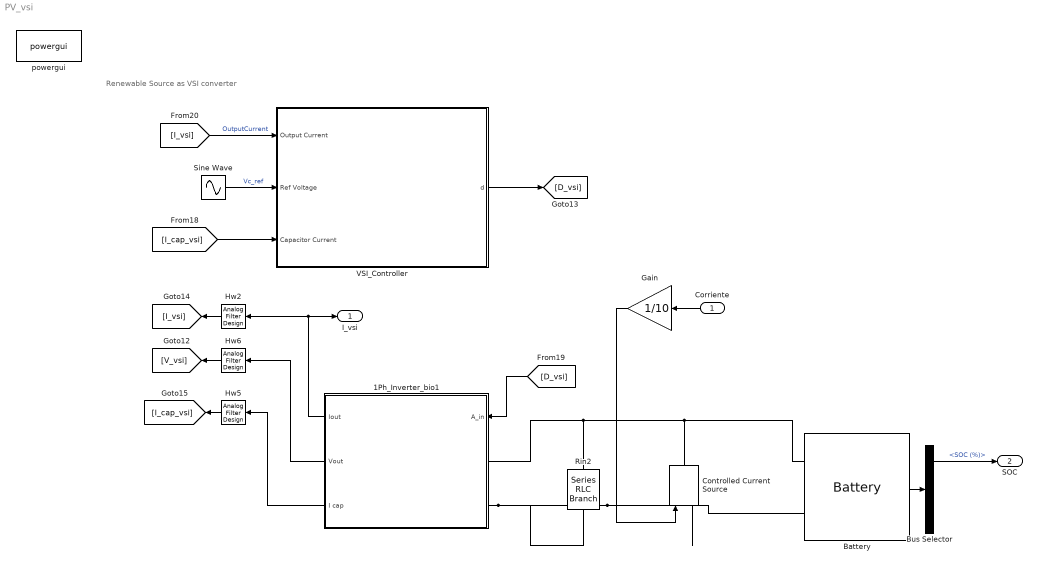
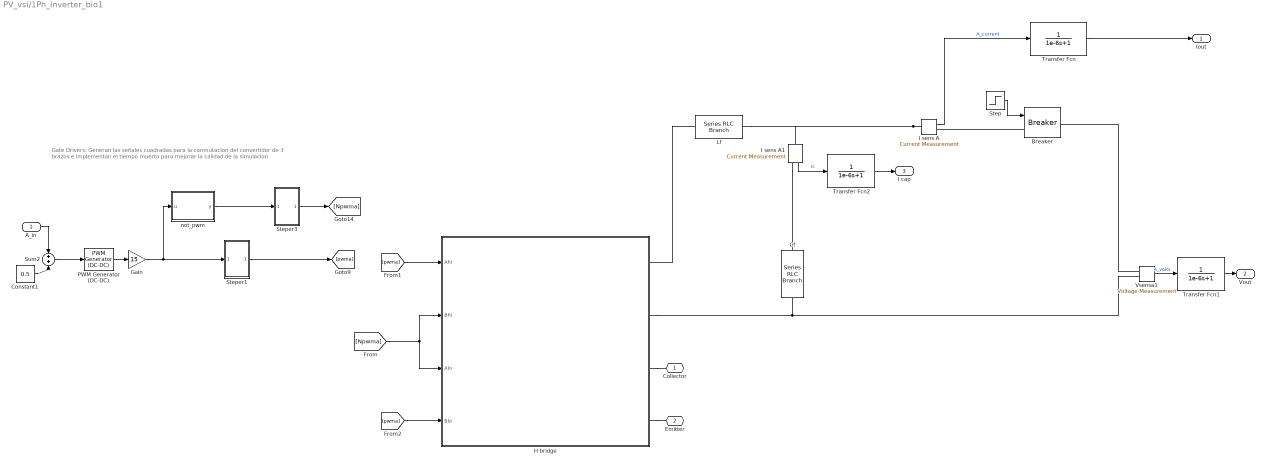
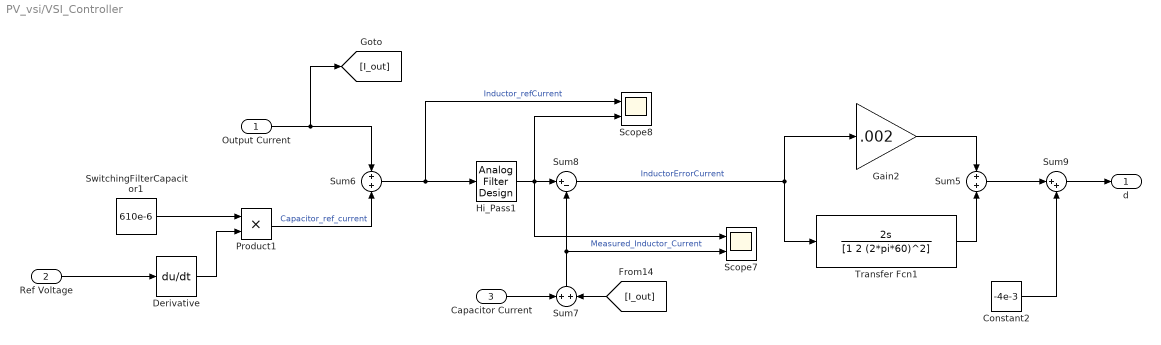
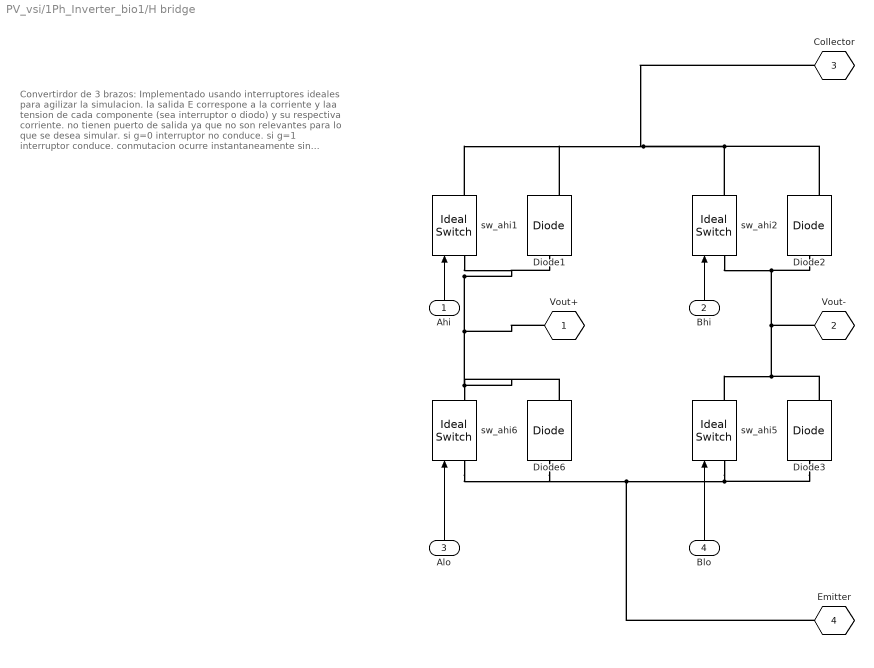
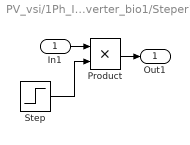
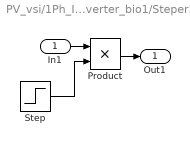
== matlab function PV_vsi/1Ph_Inverter_bio1/not_pwm ==
function y = fcn(u)
%#codegen

if(u==0 || u<0)
    a=15;
else
    a=0;
end;

y = a;

/*
 * File: PV_vsi.c
 *
 * Code generated for Simulink model 'PV_vsi'.
 *
 * Model version                  : 1.17
 * Simulink Coder version         : 8.12 (R2017a) 16-Feb-2017
 * C/C++ source code generated on : Tue Jul 31 14:14:34 2018
 *
 * Target selection: ert.tlc
 * Embedded hardware selection: Intel->x86-64 (Windows64)
 * Code generation objectives: Unspecified
 * Validation result: Not run
 */

#include "PV_vsi.h"
#include "PV_vsi_private.h"

/* Block signals (auto storage) */
B_PV_vsi_T PV_vsi_B;

/* Continuous states */
X_PV_vsi_T PV_vsi_X;

/* Block states (auto storage) */
DW_PV_vsi_T PV_vsi_DW;

/* External inputs (root inport signals with auto storage) */
ExtU_PV_vsi_T PV_vsi_U;

/* External outputs (root outports fed by signals with auto storage) */
ExtY_PV_vsi_T PV_vsi_Y;

/* Real-time model */
RT_MODEL_PV_vsi_T PV_vsi_M_;
RT_MODEL_PV_vsi_T *const PV_vsi_M = &PV_vsi_M_;

/*
 * This function updates continuous states using the ODE4 fixed-step
 * solver algorithm
 */
static void rt_ertODEUpdateContinuousStates(RTWSolverInfo *si )
{
  time_T t = rtsiGetT(si);
  time_T tnew = rtsiGetSolverStopTime(si);
  time_T h = rtsiGetStepSize(si);
  real_T *x = rtsiGetContStates(si);
  ODE4_IntgData *id = (ODE4_IntgData *)rtsiGetSolverData(si);
  real_T *y = id->y;
  real_T *f0 = id->f[0];
  real_T *f1 = id->f[1];
  real_T *f2 = id->f[2];
  real_T *f3 = id->f[3];
  real_T temp;
  int_T i;
  int_T nXc = 12;
  rtsiSetSimTimeStep(si,MINOR_TIME_STEP);

  /* Save the state values at time t in y, we'll use x as ynew. */
  (void) memcpy(y, x,
                (uint_T)nXc*sizeof(real_T));

  /* Assumes that rtsiSetT and ModelOutputs are up-to-date */
  /* f0 = f(t,y) */
  rtsiSetdX(si, f0);
  PV_vsi_derivatives();

  /* f1 = f(t + (h/2), y + (h/2)*f0) */
  temp = 0.5 * h;
  for (i = 0; i < nXc; i++) {
    x[i] = y[i] + (temp*f0[i]);
  }

  rtsiSetT(si, t + temp);
  rtsiSetdX(si, f1);
  PV_vsi_step();
  PV_vsi_derivatives();

  /* f2 = f(t + (h/2), y + (h/2)*f1) */
  for (i = 0; i < nXc; i++) {
    x[i] = y[i] + (temp*f1[i]);
  }

  rtsiSetdX(si, f2);
  PV_vsi_step();
  PV_vsi_derivatives();

  /* f3 = f(t + h, y + h*f2) */
  for (i = 0; i < nXc; i++) {
    x[i] = y[i] + (h*f2[i]);
  }

  rtsiSetT(si, tnew);
  rtsiSetdX(si, f3);
  PV_vsi_step();
  PV_vsi_derivatives();

  /* tnew = t + h
     ynew = y + (h/6)*(f0 + 2*f1 + 2*f2 + 2*f3) */
  temp = h / 6.0;
  for (i = 0; i < nXc; i++) {
    x[i] = y[i] + temp*(f0[i] + 2.0*f1[i] + 2.0*f2[i] + f3[i]);
  }

  rtsiSetSimTimeStep(si,MAJOR_TIME_STEP);
}

real_T rt_remd_snf(real_T u0, real_T u1)
{
  real_T y;
  real_T q;
  if (!((!rtIsNaN(u0)) && (!rtIsInf(u0)) && ((!rtIsNaN(u1)) && (!rtIsInf(u1)))))
  {
    y = (rtNaN);
  } else if ((u1 != 0.0) && (u1 != trunc(u1))) {
    q = fabs(u0 / u1);
    if (fabs(q - floor(q + 0.5)) <= DBL_EPSILON * q) {
      y = 0.0 * u0;
    } else {
      y = fmod(u0, u1);
    }
  } else {
    y = fmod(u0, u1);
  }

  return y;
}

/* Model step function */
void PV_vsi_step(void)
{
  /* local block i/o variables */
  real_T rtb_DataTypeConversion2;
  real_T rtb_Gain2_p;
  if (rtmIsMajorTimeStep(PV_vsi_M)) {
    /* set solver stop time */
    if (!(PV_vsi_M->Timing.clockTick0+1)) {
      rtsiSetSolverStopTime(&PV_vsi_M->solverInfo,
                            ((PV_vsi_M->Timing.clockTickH0 + 1) *
        PV_vsi_M->Timing.stepSize0 * 4294967296.0));
    } else {
      rtsiSetSolverStopTime(&PV_vsi_M->solverInfo, ((PV_vsi_M->Timing.clockTick0
        + 1) * PV_vsi_M->Timing.stepSize0 + PV_vsi_M->Timing.clockTickH0 *
        PV_vsi_M->Timing.stepSize0 * 4294967296.0));
    }
  }                                    /* end MajorTimeStep */

  /* Update absolute time of base rate at minor time step */
  if (rtmIsMinorTimeStep(PV_vsi_M)) {
    PV_vsi_M->Timing.t[0] = rtsiGetT(&PV_vsi_M->solverInfo);
  }

  {
    real_T *lastU;
    int32_T a;
    real_T rtb_R4;
    real_T rtb_Switch2;
    real_T rtb_Currentfilter5;
    real_T rtb_Gain;
    real_T rtb_R3;
    if (rtmIsMajorTimeStep(PV_vsi_M)) {
      /* Memory: '<S49>/it init1' */
      rtb_R4 = PV_vsi_DW.itinit1_PreviousInput;

      /* Gain: '<S49>/R2' incorporates:
       *  Memory: '<S49>/it init1'
       */
      rtb_Switch2 = 0.9999 * PV_vsi_DW.itinit1_PreviousInput;

      /* DiscreteTransferFcn: '<S49>/Current filter5' */
      rtb_Currentfilter5 = 0.0002999550044996413 *
        PV_vsi_DW.Currentfilter5_states;

      /* DataTypeConversion: '<S49>/Data Type Conversion2' incorporates:
       *  Constant: '<S52>/Constant'
       *  RelationalOperator: '<S52>/Compare'
       */
      rtb_DataTypeConversion2 = (rtb_Currentfilter5 > 0.0);

      /* DiscreteIntegrator: '<S49>/int(i)' incorporates:
       *  Memory: '<S49>/it init'
       */
      if (PV_vsi_DW.inti_IC_LOADING != 0) {
        PV_vsi_DW.inti_DSTATE = PV_vsi_DW.itinit_PreviousInput;
        if (PV_vsi_DW.inti_DSTATE >= 3722.3999999999905) {
          PV_vsi_DW.inti_DSTATE = 3722.3999999999905;
        } else {
          if (PV_vsi_DW.inti_DSTATE <= (rtMinusInf)) {
            PV_vsi_DW.inti_DSTATE = (rtMinusInf);
          }
        }
      }

      if ((rtb_DataTypeConversion2 > 0.0) && (PV_vsi_DW.inti_PrevResetState <= 0))
      {
        PV_vsi_DW.inti_DSTATE = PV_vsi_DW.itinit_PreviousInput;
        if (PV_vsi_DW.inti_DSTATE >= 3722.3999999999905) {
          PV_vsi_DW.inti_DSTATE = 3722.3999999999905;
        } else {
          if (PV_vsi_DW.inti_DSTATE <= (rtMinusInf)) {
            PV_vsi_DW.inti_DSTATE = (rtMinusInf);
          }
        }
      }

      if (PV_vsi_DW.inti_DSTATE >= 3722.3999999999905) {
        PV_vsi_DW.inti_DSTATE = 3722.3999999999905;
      } else {
        if (PV_vsi_DW.inti_DSTATE <= (rtMinusInf)) {
          PV_vsi_DW.inti_DSTATE = (rtMinusInf);
        }
      }

      /* Gain: '<S49>/Gain' incorporates:
       *  DiscreteIntegrator: '<S49>/int(i)'
       */
      rtb_Gain = 0.00027777777777777778 * PV_vsi_DW.inti_DSTATE;

      /* Switch: '<S59>/Switch2' incorporates:
       *  RelationalOperator: '<S59>/LowerRelop1'
       */
      if (!(rtb_Gain > rtb_Switch2)) {
        /* Switch: '<S59>/Switch' incorporates:
         *  Constant: '<S49>/Constant9'
         *  RelationalOperator: '<S59>/UpperRelop'
         */
        if (rtb_Gain < 0.0) {
          rtb_Switch2 = 0.0;
        } else {
          rtb_Switch2 = rtb_Gain;
        }

        /* End of Switch: '<S59>/Switch' */
      }

      /* End of Switch: '<S59>/Switch2' */

      /* Gain: '<S49>/R3' incorporates:
       *  Memory: '<S49>/it init1'
       */
      rtb_R3 = 0.9999 * PV_vsi_DW.itinit1_PreviousInput;

      /* Switch: '<S60>/Switch2' incorporates:
       *  RelationalOperator: '<S60>/LowerRelop1'
       */
      if (!(rtb_Gain > rtb_R3)) {
        /* Fcn: '<S49>/Fcn6' */
        rtb_R3 = -rtb_R3 * 0.999 * 0.1 * 0.9999;

        /* Switch: '<S60>/Switch' incorporates:
         *  RelationalOperator: '<S60>/UpperRelop'
         */
        if (!(rtb_Gain < rtb_R3)) {
          rtb_R3 = rtb_Gain;
        }

        /* End of Switch: '<S60>/Switch' */
      }

      /* End of Switch: '<S60>/Switch2' */

      /* Sum: '<S49>/Add3' incorporates:
       *  Constant: '<S49>/Constant'
       *  Constant: '<S53>/Constant'
       *  Fcn: '<S49>/E_NL'
       *  Fcn: '<S49>/E_dyn Discharge'
       *  Fcn: '<S49>/Fcn5'
       *  Fcn: '<S54>/Charge Li-Ion'
       *  Fcn: '<S55>/Li-Ion'
       *  Memory: '<S49>/it init1'
       *  Product: '<S54>/Product'
       *  RelationalOperator: '<S53>/Compare'
       *  Sum: '<S49>/Add2'
       */
      rtb_Gain = ((((-rtb_DataTypeConversion2 * 0.0605295518538322 *
                     rtb_Currentfilter5 * PV_vsi_DW.itinit1_PreviousInput /
                     (PV_vsi_DW.itinit1_PreviousInput - rtb_Switch2) +
                     -0.0605295518538322 * PV_vsi_DW.itinit1_PreviousInput /
                     (PV_vsi_DW.itinit1_PreviousInput - rtb_Switch2) *
                     rtb_Switch2) + -(real_T)(rtb_Currentfilter5 < 0.0) *
                    0.0605295518538322 * rtb_Currentfilter5 *
                    PV_vsi_DW.itinit1_PreviousInput /
                    (PV_vsi_DW.itinit1_PreviousInput * 0.1 + rtb_R3)) + exp
                   (-61.061946632469265 * rtb_Switch2) * 83.400845004248509) +
                  -0.0 * rtb_Switch2) + 1206.9850549957514;

      /* Switch: '<S58>/Switch2' incorporates:
       *  Constant: '<S49>/Constant1'
       *  RelationalOperator: '<S58>/LowerRelop1'
       */
      if (rtb_Gain > 2413.9701099915028) {
        PV_vsi_B.Switch2 = 2413.9701099915028;
      } else {
        /* Gain: '<S49>/R1' */
        rtb_Currentfilter5 *= 0.05;

        /* Switch: '<S58>/Switch' incorporates:
         *  RelationalOperator: '<S58>/UpperRelop'
         */
        if (rtb_Gain < rtb_Currentfilter5) {
          PV_vsi_B.Switch2 = rtb_Currentfilter5;
        } else {
          PV_vsi_B.Switch2 = rtb_Gain;
        }

        /* End of Switch: '<S58>/Switch' */
      }

      /* End of Switch: '<S58>/Switch2' */

      /* Gain: '<Root>/Gain' incorporates:
       *  Inport: '<Root>/Corriente'
       */
      PV_vsi_B.Gain = 0.1 * PV_vsi_U.Corriente;

      /* S-Function (sfun_spssw_discc): '<S70>/State-Space' incorporates:
       *  Constant: '<S33>/eee'
       *  Constant: '<S35>/eee'
       *  Constant: '<S37>/eee'
       *  Constant: '<S39>/eee'
       *  Constant: '<S72>/SwitchCurrents'
       */

      /* S-Function block: <S70>/State-Space */
      {
        real_T accum;

        /* Circuit has switches */
        int_T *switch_status = (int_T*) PV_vsi_DW.StateSpace_PWORK.SWITCH_STATUS;
        int_T *switch_status_init = (int_T*)
          PV_vsi_DW.StateSpace_PWORK.SWITCH_STATUS_INIT;
        int_T *SwitchChange = (int_T*) PV_vsi_DW.StateSpace_PWORK.SW_CHG;
        int_T *gState = (int_T*) PV_vsi_DW.StateSpace_PWORK.G_STATE;
        real_T *yswitch = (real_T*)PV_vsi_DW.StateSpace_PWORK.Y_SWITCH;
        int_T *switchTypes = (int_T*) PV_vsi_DW.StateSpace_PWORK.SWITCH_TYPES;
        int_T *idxOutSw = (int_T*) PV_vsi_DW.StateSpace_PWORK.IDX_OUT_SW;
        real_T *DxCol = (real_T*)PV_vsi_DW.StateSpace_PWORK.DX_COL;
        real_T *tmp2 = (real_T*)PV_vsi_DW.StateSpace_PWORK.TMP2;
        real_T *BDcol = (real_T*)PV_vsi_DW.StateSpace_PWORK.BD_COL;
        real_T *tmp1 = (real_T*)PV_vsi_DW.StateSpace_PWORK.TMP1;
        real_T *uswlast = (real_T*)PV_vsi_DW.StateSpace_PWORK.USWLAST;
        int_T newState;
        int_T swChanged = 0;
        int loopsToDo = 20;
        real_T temp;

        /* keep an initial copy of switch_status*/
        memcpy(switch_status_init, switch_status, 9 * sizeof(int_T));
        memcpy(uswlast, &PV_vsi_B.StateSpace_o1[0], 9*sizeof(real_T));
        do {
          if (loopsToDo == 1) {        /* Need to reset some variables: */
            swChanged = 0;

            /* return to the original switch status*/
            {
              int_T i1;
              for (i1=0; i1 < 9; i1++) {
                swChanged = ((SwitchChange[i1] = switch_status_init[i1] -
                              switch_status[i1]) != 0) ? 1 : swChanged;
                switch_status[i1] = switch_status_init[i1];
              }
            }
          } else {
            /*
             * Compute outputs:
             * ---------------
             */
            real_T *Cs = (real_T*)PV_vsi_DW.StateSpace_PWORK.CS;
            real_T *Ds = (real_T*)PV_vsi_DW.StateSpace_PWORK.DS;

            {
              int_T i1;
              real_T *y0 = &PV_vsi_B.StateSpace_o1[0];
              for (i1=0; i1 < 13; i1++) {
                accum = 0.0;

                {
                  int_T i2;
                  real_T *xd = &PV_vsi_DW.StateSpace_DSTATE[0];
                  for (i2=0; i2 < 7; i2++) {
                    accum += *(Cs++) * xd[i2];
                  }
                }

                {
                  int_T i2;
                  const real_T *u0 = PV_vsi_ConstP.SwitchCurrents_Value;
                  for (i2=0; i2 < 9; i2++) {
                    accum += *(Ds++) * u0[i2];
                  }

                  accum += *(Ds++) * PV_vsi_B.Switch2;
                  accum += *(Ds++) * PV_vsi_B.Gain;
                  accum += *(Ds++) * 0.8;
                  accum += *(Ds++) * 0.8;
                  accum += *(Ds++) * 0.8;
                  accum += *(Ds++) * 0.8;
                }

                y0[i1] = accum;
              }
            }

            swChanged = 0;

            {
              int_T i1;
              real_T *y0 = &PV_vsi_B.StateSpace_o1[0];
              for (i1=0; i1 < 9; i1++) {
                switch (switchTypes[i1]) {
                 case 1 :              /* Ideal switch */
                  newState = gState[i1] > 0 ? 1 : 0;
                  break;

                 case 2 :              /* Breaker */
                  newState = (gState[i1] > 0) ? 1 : ((y0[i1]*uswlast[i1] < 0.0) ?
                    0 : switch_status[i1]);
                  break;

                 case 3 :              /* Diodes */
                  newState = y0[i1] > 0.0 ? 1 : ((y0[i1] < 0.0) ? 0 :
                    switch_status[i1]);
                  break;
                }

                swChanged = ((SwitchChange[i1] = newState - switch_status[i1])
                             != 0) ? 1 : swChanged;
                switch_status[i1] = newState;/* Keep new state */
              }
            }
          }

          /*
           * Compute new As, Bs, Cs and Ds matrixes:
           * --------------------------------------
           */
          if (swChanged) {
            real_T *As = (real_T*)PV_vsi_DW.StateSpace_PWORK.AS;
            real_T *Cs = (real_T*)PV_vsi_DW.StateSpace_PWORK.CS;
            real_T *Bs = (real_T*)PV_vsi_DW.StateSpace_PWORK.BS;
            real_T *Ds = (real_T*)PV_vsi_DW.StateSpace_PWORK.DS;
            real_T a1;

            {
              int_T i1;
              for (i1=0; i1 < 9; i1++) {
                if (SwitchChange[i1] != 0) {
                  a1 = yswitch[i1]*SwitchChange[i1];
                  temp = 1/(1-Ds[i1*16]*a1);

                  {
                    int_T i2;
                    for (i2=0; i2 < 13; i2++) {
                      DxCol[i2]= Ds[i2 * 15 + i1]*temp*a1;
                    }
                  }

                  DxCol[i1] = temp;

                  {
                    int_T i2;
                    for (i2=0; i2 < 7; i2++) {
                      BDcol[i2]= Bs[i2 * 15 + i1]*a1;
                    }
                  }

                  /* Copy row nSw of Cs into tmp1 and zero it out in Cs */
                  memcpy(tmp1, &Cs[i1 * 7], 7 * sizeof(real_T));
                  memset(&Cs[i1 * 7], '\0', 7 * sizeof(real_T));

                  /* Copy row nSw of Ds into tmp2 and zero it out in Ds */
                  memcpy(tmp2, &Ds[i1 * 15], 15 * sizeof(real_T));
                  memset(&Ds[i1 * 15], '\0', 15 * sizeof(real_T));

                  /* Cs = Cs + DxCol * tmp1, Ds = Ds + DxCol * tmp2 *******************/
                  {
                    int_T i2;
                    for (i2=0; i2 < 13; i2++) {
                      a1 = DxCol[i2];

                      {
                        int_T i3;
                        for (i3=0; i3 < 7; i3++) {
                          Cs[i2 * 7 + i3] += a1 * tmp1[i3];
                        }
                      }

                      {
                        int_T i3;
                        for (i3=0; i3 < 15; i3++) {
                          Ds[i2 * 15 + i3] += a1 * tmp2[i3];
                        }
                      }
                    }
                  }

                  /* As = As + BdCol*Cs(nSw,:), Bs = Bs + BdCol*Ds(nSw,:) *************/
                  {
                    int_T i2;
                    for (i2=0; i2 < 7; i2++) {
                      a1 = BDcol[i2];

                      {
                        int_T i3;
                        for (i3=0; i3 < 7; i3++) {
                          As[i2 * 7 + i3] += a1 * Cs[i1 * 7 + i3];
                        }
                      }

                      {
                        int_T i3;
                        for (i3=0; i3 < 15; i3++) {
                          Bs[i2 * 15 + i3] += a1 * Ds[i1 * 15 + i3];
                        }
                      }
                    }
                  }
                }
              }
            }
          }                            /* if (swChanged) */
        } while (swChanged > 0 && --loopsToDo > 0);

        if (loopsToDo == 0) {
          real_T *Cs = (real_T*)PV_vsi_DW.StateSpace_PWORK.CS;
          real_T *Ds = (real_T*)PV_vsi_DW.StateSpace_PWORK.DS;

          {
            int_T i1;
            real_T *y0 = &PV_vsi_B.StateSpace_o1[0];
            for (i1=0; i1 < 13; i1++) {
              accum = 0.0;

              {
                int_T i2;
                real_T *xd = &PV_vsi_DW.StateSpace_DSTATE[0];
                for (i2=0; i2 < 7; i2++) {
                  accum += *(Cs++) * xd[i2];
                }
              }

              {
                int_T i2;
                const real_T *u0 = PV_vsi_ConstP.SwitchCurrents_Value;
                for (i2=0; i2 < 9; i2++) {
                  accum += *(Ds++) * u0[i2];
                }

                accum += *(Ds++) * PV_vsi_B.Switch2;
                accum += *(Ds++) * PV_vsi_B.Gain;
                accum += *(Ds++) * 0.8;
                accum += *(Ds++) * 0.8;
                accum += *(Ds++) * 0.8;
                accum += *(Ds++) * 0.8;
              }

              y0[i1] = accum;
            }
          }
        }

        /* Output new switches states */
        {
          int_T i1;
          real_T *y1 = &PV_vsi_B.StateSpace_o2[0];
          for (i1=0; i1 < 9; i1++) {
            y1[i1] = (real_T)switch_status[i1];
          }
        }
      }
    }

    /* TransferFcn: '<S1>/Transfer Fcn' */
    PV_vsi_B.TransferFcn = 0.0;
    PV_vsi_B.TransferFcn += 1.0E+6 * PV_vsi_X.TransferFcn_CSTATE;

    /* Outport: '<Root>/I_vsi' */
    PV_vsi_Y.I_vsi = PV_vsi_B.TransferFcn;

    /* TransferFcn: '<S1>/Transfer Fcn1' */
    PV_vsi_B.TransferFcn1 = 0.0;
    PV_vsi_B.TransferFcn1 += 1.0E+6 * PV_vsi_X.TransferFcn1_CSTATE;

    /* TransferFcn: '<S1>/Transfer Fcn2' */
    PV_vsi_B.TransferFcn2 = 0.0;
    PV_vsi_B.TransferFcn2 += 1.0E+6 * PV_vsi_X.TransferFcn2_CSTATE;

    /* StateSpace: '<Root>/Hw2' */
    rtb_Gain = 1.0000000000000002 * PV_vsi_X.Hw2_CSTATE[1];

    /* Sin: '<Root>/Sine Wave' */
    PV_vsi_B.Vc_ref = sin(376.99111843077515 * PV_vsi_M->Timing.t[0]) * 170.0;

    /* Derivative: '<S4>/Derivative' */
    if ((PV_vsi_DW.TimeStampA >= PV_vsi_M->Timing.t[0]) && (PV_vsi_DW.TimeStampB
         >= PV_vsi_M->Timing.t[0])) {
      rtb_Currentfilter5 = 0.0;
    } else {
      rtb_Currentfilter5 = PV_vsi_DW.TimeStampA;
      lastU = &PV_vsi_DW.LastUAtTimeA;
      if (PV_vsi_DW.TimeStampA < PV_vsi_DW.TimeStampB) {
        if (PV_vsi_DW.TimeStampB < PV_vsi_M->Timing.t[0]) {
          rtb_Currentfilter5 = PV_vsi_DW.TimeStampB;
          lastU = &PV_vsi_DW.LastUAtTimeB;
        }
      } else {
        if (PV_vsi_DW.TimeStampA >= PV_vsi_M->Timing.t[0]) {
          rtb_Currentfilter5 = PV_vsi_DW.TimeStampB;
          lastU = &PV_vsi_DW.LastUAtTimeB;
        }
      }

      rtb_Currentfilter5 = (PV_vsi_B.Vc_ref - *lastU) / (PV_vsi_M->Timing.t[0] -
        rtb_Currentfilter5);
    }

    /* End of Derivative: '<S4>/Derivative' */

    /* Sum: '<S4>/Sum6' incorporates:
     *  Constant: '<S4>/SwitchingFilterCapacitor1'
     *  Product: '<S4>/Product1'
     */
    PV_vsi_B.Inductor_refCurrent = 0.00061 * rtb_Currentfilter5 + rtb_Gain;

    /* Sum: '<S4>/Sum8' incorporates:
     *  StateSpace: '<Root>/Hw5'
     *  StateSpace: '<S4>/Hi_Pass1'
     *  Sum: '<S4>/Sum7'
     */
    PV_vsi_B.InductorErrorCurrent = (-PV_vsi_X.Hi_Pass1_CSTATE +
      PV_vsi_B.Inductor_refCurrent) - (1.0000000000000002 * PV_vsi_X.Hw5_CSTATE
      [1] + rtb_Gain);

    /* Sum: '<S1>/Sum2' incorporates:
     *  Constant: '<S1>/Constant1'
     *  Constant: '<S4>/Constant2'
     *  Gain: '<S4>/Gain2'
     *  Sum: '<S4>/Sum5'
     *  Sum: '<S4>/Sum9'
     *  TransferFcn: '<S4>/Transfer Fcn1'
     */
    rtb_Gain = (((2.0 * PV_vsi_X.TransferFcn1_CSTATE_h[0] + 0.0 *
                  PV_vsi_X.TransferFcn1_CSTATE_h[1]) + 0.002 *
                 PV_vsi_B.InductorErrorCurrent) + -0.004) + 0.5;
    if (rtmIsMajorTimeStep(PV_vsi_M)) {
      /* Gain: '<S1>/Gain' incorporates:
       *  Constant: '<S43>/Constant'
       *  Constant: '<S45>/Constant2'
       *  DataTypeConversion: '<S10>/Data Type Conversion'
       *  DigitalClock: '<S45>/Digital Clock'
       *  Fcn: '<S10>/Fcn'
       *  Fcn: '<S45>/Fcn'
       *  Gain: '<S45>/1\ib1'
       *  Logic: '<S10>/Logical Operator'
       *  Math: '<S45>/Math Function'
       *  RelationalOperator: '<S10>/Relational Operator'
       *  RelationalOperator: '<S43>/Compare'
       */
      rtb_Gain = (real_T)((rtb_Gain != 0.0) && (rtb_Gain >= ((12000.0 *
        rt_remd_snf((((PV_vsi_M->Timing.clockTick1+PV_vsi_M->Timing.clockTickH1*
                       4294967296.0)) * 1.0E-6), 8.3333333333333331E-5) * 2.0 -
        1.0) + 1.0) * 0.5)) * 15.0;

      /* Product: '<S11>/Product' incorporates:
       *  Step: '<S11>/Step'
       */
      PV_vsi_B.Product = (real_T)!((((PV_vsi_M->Timing.clockTick1+
        PV_vsi_M->Timing.clockTickH1* 4294967296.0)) * 1.0E-6) < 0.0) * rtb_Gain;

      /* MATLAB Function: '<S1>/not_pwm' */
      /* MATLAB Function '1Ph_Inverter_bio1/not_pwm': '<S14>:1' */
      /* '<S14>:1:4' if(u==0 || u<0) */
      if (rtb_Gain == 0.0) {
        /* '<S14>:1:5' a=15; */
        a = 15;
      } else {
        /* '<S14>:1:6' else */
        /* '<S14>:1:7' a=0; */
        a = 0;
      }

      /* Product: '<S12>/Product' incorporates:
       *  MATLAB Function: '<S1>/not_pwm'
       *  Step: '<S12>/Step'
       */
      /* '<S14>:1:10' y = a; */
      PV_vsi_B.Product_m = (real_T)!((((PV_vsi_M->Timing.clockTick1+
        PV_vsi_M->Timing.clockTickH1* 4294967296.0)) * 1.0E-6) < 0.0) * (real_T)
        a;

      /* Gain: '<S49>/R4' */
      rtb_R4 *= 0.96711798839458663;

      /* Fcn: '<S49>/Fcn1' */
      rtb_R4 = (1.0 - rtb_Switch2 / rtb_R4) * 100.0;

      /* Saturate: '<S49>/Saturation' */
      if (rtb_R4 > 100.0) {
        /* Outport: '<Root>/SOC' */
        PV_vsi_Y.SOC = 100.0;
      } else if (rtb_R4 < 0.0) {
        /* Outport: '<Root>/SOC' */
        PV_vsi_Y.SOC = 0.0;
      } else {
        /* Outport: '<Root>/SOC' */
        PV_vsi_Y.SOC = rtb_R4;
      }

      /* End of Saturate: '<S49>/Saturation' */

      /* Gain: '<S49>/Gain2' */
      rtb_Gain2_p = 3600.0 * rtb_Switch2;
    }

    /* Lookup: '<S16>/Look-Up Table' incorporates:
     *  Clock: '<S16>/Clock'
     */
    PV_vsi_B.LookUpTable = rt_Lookup(PV_vsi_ConstP.LookUpTable_XData, 5,
      PV_vsi_M->Timing.t[0], PV_vsi_ConstP.LookUpTable_YData);

    /* Step: '<S1>/Step' */
    PV_vsi_B.Step = !(PV_vsi_M->Timing.t[0] < 0.0);
  }

  if (rtmIsMajorTimeStep(PV_vsi_M)) {
    real_T *lastU;
    if (rtmIsMajorTimeStep(PV_vsi_M)) {
      /* Update for Memory: '<S49>/it init1' incorporates:
       *  Constant: '<S49>/Constant12'
       */
      PV_vsi_DW.itinit1_PreviousInput = 1.0339999999999974;

      /* Update for DiscreteTransferFcn: '<S49>/Current filter5' */
      PV_vsi_DW.Currentfilter5_states = PV_vsi_B.StateSpace_o1[10] -
        -0.99970004499550036 * PV_vsi_DW.Currentfilter5_states;

      /* Update for Memory: '<S49>/it init' */
      PV_vsi_DW.itinit_PreviousInput = rtb_Gain2_p;

      /* Update for DiscreteIntegrator: '<S49>/int(i)' */
      PV_vsi_DW.inti_IC_LOADING = 0U;
      PV_vsi_DW.inti_DSTATE += 1.0E-6 * PV_vsi_B.StateSpace_o1[10];
      if (PV_vsi_DW.inti_DSTATE >= 3722.3999999999905) {
        PV_vsi_DW.inti_DSTATE = 3722.3999999999905;
      } else {
        if (PV_vsi_DW.inti_DSTATE <= (rtMinusInf)) {
          PV_vsi_DW.inti_DSTATE = (rtMinusInf);
        }
      }

      if (rtb_DataTypeConversion2 > 0.0) {
        PV_vsi_DW.inti_PrevResetState = 1;
      } else if (rtb_DataTypeConversion2 < 0.0) {
        PV_vsi_DW.inti_PrevResetState = -1;
      } else if (rtb_DataTypeConversion2 == 0.0) {
        PV_vsi_DW.inti_PrevResetState = 0;
      } else {
        PV_vsi_DW.inti_PrevResetState = 2;
      }

      /* End of Update for DiscreteIntegrator: '<S49>/int(i)' */

      /* Update for S-Function (sfun_spssw_discc): '<S70>/State-Space' incorporates:
       *  Constant: '<S33>/eee'
       *  Constant: '<S35>/eee'
       *  Constant: '<S37>/eee'
       *  Constant: '<S39>/eee'
       *  Constant: '<S72>/SwitchCurrents'
       */

      /* S-Function block: <S70>/State-Space */
      {
        const real_T *As = (real_T*)PV_vsi_DW.StateSpace_PWORK.AS;
        const real_T *Bs = (real_T*)PV_vsi_DW.StateSpace_PWORK.BS;
        real_T *xtmp = (real_T*)PV_vsi_DW.StateSpace_PWORK.XTMP;
        real_T accum;

        /* Calculate new states... */
        {
          int_T i1;
          real_T *xd = &PV_vsi_DW.StateSpace_DSTATE[0];
          for (i1=0; i1 < 7; i1++) {
            accum = 0.0;

            {
              int_T i2;
              real_T *xd = &PV_vsi_DW.StateSpace_DSTATE[0];
              for (i2=0; i2 < 7; i2++) {
                accum += *(As++) * xd[i2];
              }
            }

            {
              int_T i2;
              const real_T *u0 = PV_vsi_ConstP.SwitchCurrents_Value;
              for (i2=0; i2 < 9; i2++) {
                accum += *(Bs++) * u0[i2];
              }

              accum += *(Bs++) * PV_vsi_B.Switch2;
              accum += *(Bs++) * PV_vsi_B.Gain;
              accum += *(Bs++) * 0.8;
              accum += *(Bs++) * 0.8;
              accum += *(Bs++) * 0.8;
              accum += *(Bs++) * 0.8;
            }

            xtmp[i1] = accum;
          }
        }

        {
          int_T i1;
          real_T *xd = &PV_vsi_DW.StateSpace_DSTATE[0];
          for (i1=0; i1 < 7; i1++) {
            xd[i1] = xtmp[i1];
          }
        }

        {
          int_T *gState = (int_T*)PV_vsi_DW.StateSpace_PWORK.G_STATE;

          /* Store switch gates values for next step */
          *(gState++) = (int_T) PV_vsi_B.Product;
          *(gState++) = (int_T) PV_vsi_B.Product_m;
          *(gState++) = (int_T) PV_vsi_B.Product;
          *(gState++) = (int_T) PV_vsi_B.Product_m;
          *(gState++) = (int_T) PV_vsi_B.Step;
          *(gState++) = (int_T) 0.0;
          *(gState++) = (int_T) 0.0;
          *(gState++) = (int_T) 0.0;
          *(gState++) = (int_T) 0.0;
        }
      }
    }

    /* Update for Derivative: '<S4>/Derivative' */
    if (PV_vsi_DW.TimeStampA == (rtInf)) {
      PV_vsi_DW.TimeStampA = PV_vsi_M->Timing.t[0];
      lastU = &PV_vsi_DW.LastUAtTimeA;
    } else if (PV_vsi_DW.TimeStampB == (rtInf)) {
      PV_vsi_DW.TimeStampB = PV_vsi_M->Timing.t[0];
      lastU = &PV_vsi_DW.LastUAtTimeB;
    } else if (PV_vsi_DW.TimeStampA < PV_vsi_DW.TimeStampB) {
      PV_vsi_DW.TimeStampA = PV_vsi_M->Timing.t[0];
      lastU = &PV_vsi_DW.LastUAtTimeA;
    } else {
      PV_vsi_DW.TimeStampB = PV_vsi_M->Timing.t[0];
      lastU = &PV_vsi_DW.LastUAtTimeB;
    }

    *lastU = PV_vsi_B.Vc_ref;

    /* End of Update for Derivative: '<S4>/Derivative' */

    /* Update for Derivative: '<S16>/Derivative' */
    if (PV_vsi_DW.TimeStampA_f == (rtInf)) {
      PV_vsi_DW.TimeStampA_f = PV_vsi_M->Timing.t[0];
      lastU = &PV_vsi_DW.LastUAtTimeA_e;
    } else if (PV_vsi_DW.TimeStampB_h == (rtInf)) {
      PV_vsi_DW.TimeStampB_h = PV_vsi_M->Timing.t[0];
      lastU = &PV_vsi_DW.LastUAtTimeB_b;
    } else if (PV_vsi_DW.TimeStampA_f < PV_vsi_DW.TimeStampB_h) {
      PV_vsi_DW.TimeStampA_f = PV_vsi_M->Timing.t[0];
      lastU = &PV_vsi_DW.LastUAtTimeA_e;
    } else {
      PV_vsi_DW.TimeStampB_h = PV_vsi_M->Timing.t[0];
      lastU = &PV_vsi_DW.LastUAtTimeB_b;
    }

    *lastU = PV_vsi_B.LookUpTable;

    /* End of Update for Derivative: '<S16>/Derivative' */
  }                                    /* end MajorTimeStep */

  if (rtmIsMajorTimeStep(PV_vsi_M)) {
    rt_ertODEUpdateContinuousStates(&PV_vsi_M->solverInfo);

    /* Update absolute time for base rate */
    /* The "clockTick0" counts the number of times the code of this task has
     * been executed. The absolute time is the multiplication of "clockTick0"
     * and "Timing.stepSize0". Size of "clockTick0" ensures timer will not
     * overflow during the application lifespan selected.
     * Timer of this task consists of two 32 bit unsigned integers.
     * The two integers represent the low bits Timing.clockTick0 and the high bits
     * Timing.clockTickH0. When the low bit overflows to 0, the high bits increment.
     */
    if (!(++PV_vsi_M->Timing.clockTick0)) {
      ++PV_vsi_M->Timing.clockTickH0;
    }

    PV_vsi_M->Timing.t[0] = rtsiGetSolverStopTime(&PV_vsi_M->solverInfo);

    {
      /* Update absolute timer for sample time: [1.0E-6s, 0.0s] */
      /* The "clockTick1" counts the number of times the code of this task has
       * been executed. The resolution of this integer timer is 1.0E-6, which is the step size
       * of the task. Size of "clockTick1" ensures timer will not overflow during the
       * application lifespan selected.
       * Timer of this task consists of two 32 bit unsigned integers.
       * The two integers represent the low bits Timing.clockTick1 and the high bits
       * Timing.clockTickH1. When the low bit overflows to 0, the high bits increment.
       */
      PV_vsi_M->Timing.clockTick1++;
      if (!PV_vsi_M->Timing.clockTick1) {
        PV_vsi_M->Timing.clockTickH1++;
      }
    }
  }                                    /* end MajorTimeStep */
}
